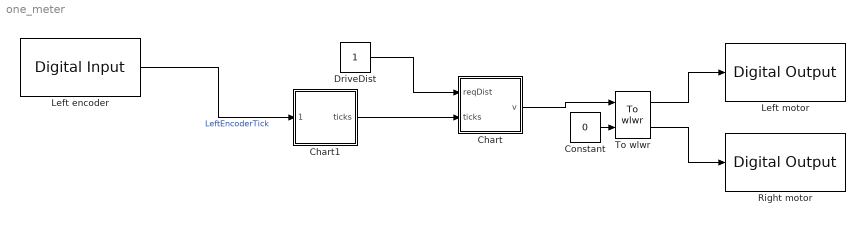
== stateflow chart one_meter/Chart1 ==
  state Default
    entry:
    LeftEncoderTicks;
    ticks;
  state Accumulate
    entry:
    ticks = ticks + 1;
  (default) -> Default
  Accumulate -> Default
  Default -> Accumulate : [LeftEncoderTicks == 1]
  data: ticks output =0; LeftEncoderTicks input

== stateflow chart one_meter/Chart ==
  state Default
    entry:
    ticks;
    dist1Tick=(pi*0.031)/10
    reqTicks=reqDist/dist1Tick;
  state Stop
    entry:
    v=0;
  state Move
    entry:
    v=0.5;
  (default) -> Default
  Default -> Stop [order 2] : [ticks==reqTicks | ticks>reqTicks]
  Move -> Default
  Default -> Move [order 1] : [ticks<reqTicks]
  data: reqDist input; ticks input; v output; dist1Tick local; reqTicks local

/*
 * Academic License - for use in teaching, academic research, and meeting
 * course requirements at degree granting institutions only.  Not for
 * government, commercial, or other organizational use.
 *
 * File: one_meter.c
 *
 * Code generated for Simulink model 'one_meter'.
 *
 * Model version                  : 1.4
 * Simulink Coder version         : 9.9 (R2023a) 19-Nov-2022
 * C/C++ source code generated on : Wed Oct  4 13:15:00 2023
 *
 * Target selection: ert.tlc
 * Embedded hardware selection: ARM Compatible->ARM Cortex
 * Code generation objectives: Unspecified
 * Validation result: Not run
 */

#include "one_meter.h"
#include "rtwtypes.h"
#include "one_meter_private.h"
#include <math.h>

/* Named constants for Chart: '<Root>/Chart' */
#define one_meter_IN_Default           ((uint8_T)1U)
#define one_meter_IN_Move              ((uint8_T)2U)
#define one_meter_IN_Stop              ((uint8_T)3U)

/* Named constants for Chart: '<Root>/Chart1' */
#define one_meter_IN_Accumulate        ((uint8_T)1U)
#define one_meter_IN_Default_m         ((uint8_T)2U)

/* Block signals (default storage) */
B_one_meter_T one_meter_B;

/* Block states (default storage) */
DW_one_meter_T one_meter_DW;

/* Real-time model */
static RT_MODEL_one_meter_T one_meter_M_;
RT_MODEL_one_meter_T *const one_meter_M = &one_meter_M_;
static void rate_scheduler(void);

/*
 *         This function updates active task flag for each subrate.
 *         The function is called at model base rate, hence the
 *         generated code self-manages all its subrates.
 */
static void rate_scheduler(void)
{
  /* Compute which subrates run during the next base time step.  Subrates
   * are an integer multiple of the base rate counter.  Therefore, the subtask
   * counter is reset when it reaches its limit (zero means run).
   */
  (one_meter_M->Timing.TaskCounters.TID[1])++;
  if ((one_meter_M->Timing.TaskCounters.TID[1]) > 9) {/* Sample time: [0.1s, 0.0s] */
    one_meter_M->Timing.TaskCounters.TID[1] = 0;
  }
}

real_T rt_roundd_snf(real_T u)
{
  real_T y;
  if (fabs(u) < 4.503599627370496E+15) {
    if (u >= 0.5) {
      y = floor(u + 0.5);
    } else if (u > -0.5) {
      y = u * 0.0;
    } else {
      y = ceil(u - 0.5);
    }
  } else {
    y = u;
  }

  return y;
}

/* Model step function */
void one_meter_step(void)
{
  real_T tmp;
  real_T tmp_0;
  uint8_T tmp_1;
  boolean_T c_value;
  if (one_meter_M->Timing.TaskCounters.TID[1] == 0) {
    /* MATLABSystem: '<Root>/Left encoder' */
    if (one_meter_DW.obj.SampleTime != one_meter_P.Leftencoder_SampleTime) {
      one_meter_DW.obj.SampleTime = one_meter_P.Leftencoder_SampleTime;
    }

    c_value = readDigitalPin(2);

    /* Chart: '<Root>/Chart1' incorporates:
     *  MATLABSystem: '<Root>/Left encoder'
     */
    if (one_meter_DW.is_active_c1_one_meter == 0U) {
      one_meter_DW.is_active_c1_one_meter = 1U;
      one_meter_DW.is_c1_one_meter = one_meter_IN_Default_m;
    } else if (one_meter_DW.is_c1_one_meter == one_meter_IN_Accumulate) {
      one_meter_DW.is_c1_one_meter = one_meter_IN_Default_m;

      /* case IN_Default: */
    } else if (c_value) {
      one_meter_DW.is_c1_one_meter = one_meter_IN_Accumulate;
      one_meter_B.ticks++;
    }

    /* End of Chart: '<Root>/Chart1' */

    /* Chart: '<Root>/Chart' incorporates:
     *  Constant: '<Root>/DriveDist'
     */
    if (one_meter_DW.is_active_c3_one_meter == 0U) {
      one_meter_DW.is_active_c3_one_meter = 1U;
      one_meter_DW.is_c3_one_meter = one_meter_IN_Default;
      one_meter_DW.reqTicks = one_meter_P.DriveDist_Value /
        0.0097389372261283587;
    } else {
      switch (one_meter_DW.is_c3_one_meter) {
       case one_meter_IN_Default:
        if (one_meter_B.ticks < one_meter_DW.reqTicks) {
          one_meter_DW.is_c3_one_meter = one_meter_IN_Move;
          one_meter_B.v = 0.5;
        } else if ((one_meter_B.ticks == one_meter_DW.reqTicks) ||
                   (one_meter_B.ticks > one_meter_DW.reqTicks)) {
          one_meter_DW.is_c3_one_meter = one_meter_IN_Stop;
          one_meter_B.v = 0.0;
        }
        break;

       case one_meter_IN_Move:
        one_meter_B.v = 0.5;
        one_meter_DW.is_c3_one_meter = one_meter_IN_Default;
        one_meter_DW.reqTicks = one_meter_P.DriveDist_Value /
          0.0097389372261283587;
        break;

       default:
        /* case IN_Stop: */
        one_meter_B.v = 0.0;
        break;
      }
    }

    /* End of Chart: '<Root>/Chart' */

    /* Gain: '<S3>/vtow' */
    tmp = 1.0 / one_meter_P.Towlwr_wheelR;

    /* MATLABSystem: '<Root>/Left motor' incorporates:
     *  Constant: '<Root>/Constant'
     *  Gain: '<S3>/change parameters'
     *  Gain: '<S3>/vtow'
     *  SignalConversion generated from: '<S3>/change parameters'
     */
    tmp_0 = rt_roundd_snf((one_meter_P.changeparameters_Gain[0] * one_meter_B.v
      + one_meter_P.changeparameters_Gain[2] * one_meter_P.Constant_Value) * tmp);
    if (tmp_0 < 256.0) {
      if (tmp_0 >= 0.0) {
        tmp_1 = (uint8_T)tmp_0;
      } else {
        tmp_1 = 0U;
      }
    } else {
      tmp_1 = MAX_uint8_T;
    }

    writeDigitalPin(4, tmp_1);

    /* End of MATLABSystem: '<Root>/Left motor' */

    /* MATLABSystem: '<Root>/Right motor' incorporates:
     *  Constant: '<Root>/Constant'
     *  Gain: '<S3>/change parameters'
     *  Gain: '<S3>/vtow'
     *  SignalConversion generated from: '<S3>/change parameters'
     */
    tmp = rt_roundd_snf((one_meter_P.changeparameters_Gain[1] * one_meter_B.v +
                         one_meter_P.changeparameters_Gain[3] *
                         one_meter_P.Constant_Value) * tmp);
    if (tmp < 256.0) {
      if (tmp >= 0.0) {
        tmp_1 = (uint8_T)tmp;
      } else {
        tmp_1 = 0U;
      }
    } else {
      tmp_1 = MAX_uint8_T;
    }

    writeDigitalPin(6, tmp_1);

    /* End of MATLABSystem: '<Root>/Right motor' */
  }

  rate_scheduler();
}
